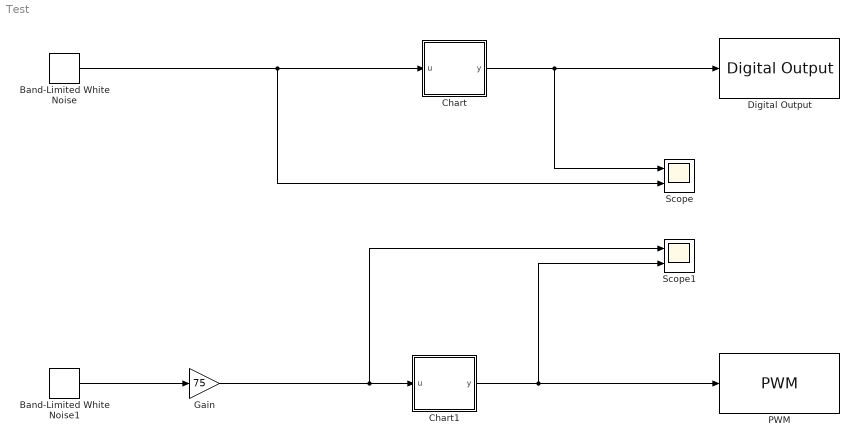
== stateflow chart Test/Chart1 ==
  state Off
    entry: y= u*(-1)
  state On
    entry: y = u*1
  (default) -> On
  On -> Off [order 1] : [u<0]
  Off -> On [order 1] : [u>0]
  Off -> Off [order 2] : [y~=u]
  On -> On [order 2] : [u~=y]
  data: u input; y output

== stateflow chart Test/Chart ==
  state Off
    entry: y=0
  state On
    entry: y = 1
  (default) -> On
  On -> Off : [u<0]
  Off -> On : [u>0]
  data: u input; y output

/*
 * File: Test.c
 *
 * Code generated for Simulink model 'Test'.
 *
 * Model version                  : 1.17
 * Simulink Coder version         : 8.9 (R2015b) 13-Aug-2015
 * C/C++ source code generated on : Wed Aug 08 12:58:16 2018
 *
 * Target selection: ert.tlc
 * Embedded hardware selection: Atmel->AVR
 * Code generation objectives:
 *    1. Execution efficiency
 *    2. RAM efficiency
 * Validation result: Not run
 */

#include "Test.h"

/* Named constants for Chart: '<Root>/Chart' */
#define IN_Off                         ((uint8_T)1U)
#define IN_On                          ((uint8_T)2U)

/* Block signals and states (auto storage) */
DW rtDW;

/* Real-time model */
RT_MODEL rtM_;
RT_MODEL *const rtM = &rtM_;
extern real_T rt_urand_Upu32_Yd_f_pw(uint32_T *u);
extern real_T rt_nrand_Upu32_Yd_f_pw(uint32_T *u);
static void rate_scheduler(void);

/*
 *   This function updates active task flag for each subrate.
 * The function is called at model base rate, hence the
 * generated code self-manages all its subrates.
 */
static void rate_scheduler(void)
{
  /* Compute which subrates run during the next base time step.  Subrates
   * are an integer multiple of the base rate counter.  Therefore, the subtask
   * counter is reset when it reaches its limit (zero means run).
   */
  (rtM->Timing.TaskCounters.TID[1])++;
  if ((rtM->Timing.TaskCounters.TID[1]) > 4) {/* Sample time: [0.5s, 0.0s] */
    rtM->Timing.TaskCounters.TID[1] = 0;
  }
}

real_T rt_urand_Upu32_Yd_f_pw(uint32_T *u)
{
  uint32_T lo;
  uint32_T hi;

  /* Uniform random number generator (random number between 0 and 1)

     #define IA      16807                      magic multiplier = 7^5
     #define IM      2147483647                 modulus = 2^31-1
     #define IQ      127773                     IM div IA
     #define IR      2836                       IM modulo IA
     #define S       4.656612875245797e-10      reciprocal of 2^31-1
     test = IA * (seed % IQ) - IR * (seed/IQ)
     seed = test < 0 ? (test + IM) : test
     return (seed*S)
   */
  lo = *u % 127773UL * 16807UL;
  hi = *u / 127773UL * 2836UL;
  if (lo < hi) {
    *u = 2147483647UL - (hi - lo);
  } else {
    *u = lo - hi;
  }

  return (real_T)*u * 4.6566128752457969E-10;
}

real_T rt_nrand_Upu32_Yd_f_pw(uint32_T *u)
{
  real_T y;
  real_T sr;
  real_T si;

  /* Normal (Gaussian) random number generator */
  do {
    sr = 2.0 * rt_urand_Upu32_Yd_f_pw(u) - 1.0;
    si = 2.0 * rt_urand_Upu32_Yd_f_pw(u) - 1.0;
    si = sr * sr + si * si;
  } while (si > 1.0);

  y = sqrt(-2.0 * log(si) / si) * sr;
  return y;
}

/* Model step function */
void Test_step(void)
{
  real_T rtb_Output;
  uint8_T tmp;

  /* Gain: '<S1>/Output' incorporates:
   *  RandomNumber: '<S1>/White Noise'
   */
  rtb_Output = 3.1622776601683791 * rtDW.NextOutput;

  /* Chart: '<Root>/Chart' */
  /* Gateway: Chart */
  /* During: Chart */
  if (rtDW.is_active_c3_Test == 0U) {
    /* Entry: Chart */
    rtDW.is_active_c3_Test = 1U;

    /* Entry Internal: Chart */
    /* Transition: '<S3>:5' */
    rtDW.is_c3_Test = IN_On;

    /* Entry 'On': '<S3>:1' */
    rtDW.y_e = 1.0;
  } else if (rtDW.is_c3_Test == IN_Off) {
    /* During 'Off': '<S3>:2' */
    if (rtb_Output > 0.0) {
      /* Transition: '<S3>:4' */
      rtDW.is_c3_Test = IN_On;

      /* Entry 'On': '<S3>:1' */
      rtDW.y_e = 1.0;
    }
  } else {
    /* During 'On': '<S3>:1' */
    if (rtb_Output < 0.0) {
      /* Transition: '<S3>:3' */
      rtDW.is_c3_Test = IN_Off;

      /* Entry 'Off': '<S3>:2' */
      rtDW.y_e = 0.0;
    }
  }

  /* End of Chart: '<Root>/Chart' */

  /* DataTypeConversion: '<S5>/Data Type Conversion' */
  if (rtDW.y_e < 256.0) {
    if (rtDW.y_e >= 0.0) {
      tmp = (uint8_T)rtDW.y_e;
    } else {
      tmp = 0U;
    }
  } else {
    tmp = MAX_uint8_T;
  }

  /* End of DataTypeConversion: '<S5>/Data Type Conversion' */

  /* S-Function (arduinodigitaloutput_sfcn): '<S5>/Digital Output' */
  MW_digitalWrite(9UL, tmp);
  if (rtM->Timing.TaskCounters.TID[1] == 0) {
    /* Gain: '<Root>/Gain' incorporates:
     *  Gain: '<S2>/Output'
     *  RandomNumber: '<S2>/White Noise'
     */
    rtb_Output = 1.4142135623730949 * rtDW.NextOutput_n * 75.0;

    /* Chart: '<Root>/Chart1' */
    /* Gateway: Chart1 */
    /* During: Chart1 */
    if (rtDW.is_active_c1_Test == 0U) {
      /* Entry: Chart1 */
      rtDW.is_active_c1_Test = 1U;

      /* Entry Internal: Chart1 */
      /* Transition: '<S4>:5' */
      rtDW.is_c1_Test = IN_On;

      /* Entry 'On': '<S4>:1' */
      rtDW.y = rtb_Output;
    } else if (rtDW.is_c1_Test == IN_Off) {
      /* During 'Off': '<S4>:2' */
      if (rtb_Output > 0.0) {
        /* Transition: '<S4>:4' */
        rtDW.is_c1_Test = IN_On;

        /* Entry 'On': '<S4>:1' */
        rtDW.y = rtb_Output;
      } else {
        if (rtDW.y != rtb_Output) {
          /* Transition: '<S4>:9' */
          rtDW.is_c1_Test = IN_Off;

          /* Entry 'Off': '<S4>:2' */
          rtDW.y = -rtb_Output;
        }
      }
    } else {
      /* During 'On': '<S4>:1' */
      if (rtb_Output < 0.0) {
        /* Transition: '<S4>:3' */
        rtDW.is_c1_Test = IN_Off;

        /* Entry 'Off': '<S4>:2' */
        rtDW.y = -rtb_Output;
      } else {
        if (rtb_Output != rtDW.y) {
          /* Transition: '<S4>:8' */
          rtDW.is_c1_Test = IN_On;

          /* Entry 'On': '<S4>:1' */
          rtDW.y = rtb_Output;
        }
      }
    }

    /* End of Chart: '<Root>/Chart1' */

    /* DataTypeConversion: '<S6>/Data Type Conversion' */
    if (rtDW.y < 256.0) {
      if (rtDW.y >= 0.0) {
        tmp = (uint8_T)rtDW.y;
      } else {
        tmp = 0U;
      }
    } else {
      tmp = MAX_uint8_T;
    }

    /* End of DataTypeConversion: '<S6>/Data Type Conversion' */

    /* S-Function (arduinoanalogoutput_sfcn): '<S6>/PWM' */
    MW_analogWrite(5UL, tmp);

    /* Update for RandomNumber: '<S2>/White Noise' */
    rtDW.NextOutput_n = rt_nrand_Upu32_Yd_f_pw(&rtDW.RandSeed_k);
  }

  /* Update for RandomNumber: '<S1>/White Noise' */
  rtDW.NextOutput = rt_nrand_Upu32_Yd_f_pw(&rtDW.RandSeed);
  rate_scheduler();
}
